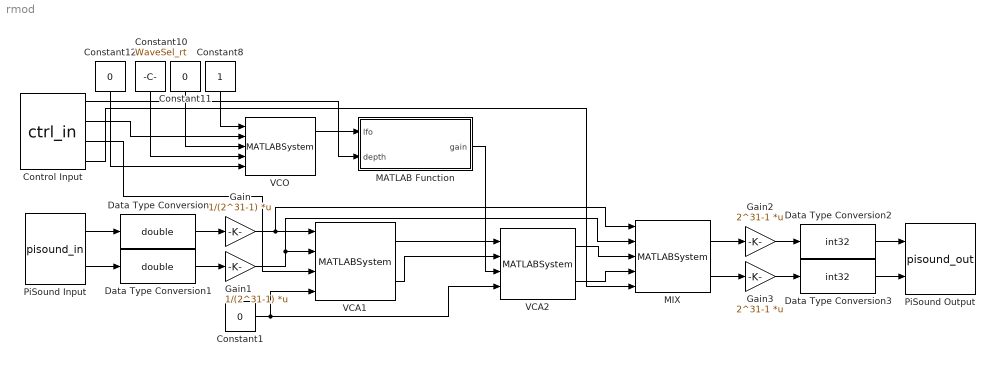
== matlab function rmod/MATLAB Function ==
function gain = ring_gain(lfo, depth)
% ring_gain  Convierte la salida del LFO en ganancia bipolar para VCA
%
% Entradas:
%   lfo   : [N x 1] double  salida del LFO en [-1, 1]
%   depth : scalar double   profundidad de modulación [0, 1]
%
% Salida:
%   gain  : [N x 1] double  ganancia bipolar para VCA modo lineal

    gain = depth * lfo;
end

/*
 * Academic License - for use in teaching, academic research, and meeting
 * course requirements at degree granting institutions only.  Not for
 * government, commercial, or other organizational use.
 *
 * File: rmod.c
 *
 * Code generated for Simulink model 'rmod'.
 *
 * Model version                  : 1.62
 * Simulink Coder version         : 25.2 (R2025b) 28-Jul-2025
 * C/C++ source code generated on : Sat Apr 11 11:25:51 2026
 *
 * Target selection: ert.tlc
 * Embedded hardware selection: Generic->32-bit Embedded Processor
 * Code generation objectives: Unspecified
 * Validation result: Not run
 */

#include "rmod.h"
#include "rtwtypes.h"
#include "rmod_private.h"
#include "rt_nonfinite.h"
#include <math.h>
#include <string.h>

/* Block signals (default storage) */
B_rmod_T rmod_B;

/* Block states (default storage) */
DW_rmod_T rmod_DW;

/* Real-time model */
static RT_MODEL_rmod_T rmod_M_;
RT_MODEL_rmod_T *const rmod_M = &rmod_M_;

/* Forward declaration for local functions */
static real_T rmod_wt_read_lin(const real_T tbl[4096], real_T L, real_T ph);
real_T rt_powd_snf(real_T u0, real_T u1)
{
  real_T y;
  if (rtIsNaN(u0) || rtIsNaN(u1)) {
    y = (rtNaN);
  } else {
    real_T tmp;
    real_T tmp_0;
    tmp = fabs(u0);
    tmp_0 = fabs(u1);
    if (rtIsInf(u1)) {
      if (tmp == 1.0) {
        y = 1.0;
      } else if (tmp > 1.0) {
        if (u1 > 0.0) {
          y = (rtInf);
        } else {
          y = 0.0;
        }
      } else if (u1 > 0.0) {
        y = 0.0;
      } else {
        y = (rtInf);
      }
    } else if (tmp_0 == 0.0) {
      y = 1.0;
    } else if (tmp_0 == 1.0) {
      if (u1 > 0.0) {
        y = u0;
      } else {
        y = 1.0 / u0;
      }
    } else if (u1 == 2.0) {
      y = u0 * u0;
    } else if ((u1 == 0.5) && (u0 >= 0.0)) {
      y = sqrt(u0);
    } else if ((u0 < 0.0) && (u1 > floor(u1))) {
      y = (rtNaN);
    } else {
      y = pow(u0, u1);
    }
  }

  return y;
}

static real_T rmod_wt_read_lin(const real_T tbl[4096], real_T L, real_T ph)
{
  real_T idx;
  real_T k;
  real_T p1;
  real_T p2;
  if (ph >= 1.0) {
    /* Start for MATLABSystem: '<Root>/VCO' */
    ph -= floor(ph);
  }

  idx = ph * L;

  /* Start for MATLABSystem: '<Root>/VCO' */
  k = floor(idx);
  p1 = k + 1.0;

  /* Start for MATLABSystem: '<Root>/VCO' */
  if (k + 1.0 > L) {
    p1 = 1.0;
  }

  p2 = p1 + 1.0;

  /* Start for MATLABSystem: '<Root>/VCO' */
  if (p1 + 1.0 > L) {
    p2 = 1.0;
  }

  p1 = tbl[(int32_T)p1 - 1];

  /* Start for MATLABSystem: '<Root>/VCO' */
  return (tbl[(int32_T)p2 - 1] - p1) * (idx - k) + p1;
}

/* Model step function */
void rmod_step(void)
{
  real_T rtb_Gain[128];
  real_T rtb_Gain1[128];
  real_T rtb_VCA2_o1[128];
  real_T rtb_gain[128];
  real_T L;
  real_T g;
  real_T inc;
  real_T ph;
  real_T q;
  real_T tmp;
  real_T vL;
  int32_T i;
  uint8_T ws;
  boolean_T m;

  /* S-Function (ctrl_in): '<Root>/Control Input' */

  /* Level2 S-Function Block: '<Root>/Control Input' (ctrl_in) */
  {
    SimStruct *rts = rmod_M->childSfunctions[0];
    sfcnOutputs(rts,0);
  }

  /* S-Function (pisound_in): '<Root>/PiSound Input' */

  /* Level2 S-Function Block: '<Root>/PiSound Input' (pisound_in) */
  {
    SimStruct *rts = rmod_M->childSfunctions[1];
    sfcnOutputs(rts,0);
  }

  for (i = 0; i < 128; i++) {
    /* Gain: '<Root>/Gain' incorporates:
     *  DataTypeConversion: '<Root>/Data Type Conversion'
     */
    rtb_Gain[i] = rmod_P.Gain_Gain * (real_T)rmod_B.PiSoundInput_o1[i];

    /* Gain: '<Root>/Gain1' incorporates:
     *  DataTypeConversion: '<Root>/Data Type Conversion1'
     */
    rtb_Gain1[i] = rmod_P.Gain1_Gain * (real_T)rmod_B.PiSoundInput_o2[i];
  }

  /* MATLABSystem: '<Root>/VCA1' incorporates:
   *  Constant: '<Root>/Constant1'
   */
  g = rmod_B.ControlInput_o3;

  /*  g es Nx1 */
  if (rmod_P.Constant1_Value != 0) {
    g = rt_powd_snf(10.0, rmod_B.ControlInput_o3 / 20.0);

    /*  dB -> lineal, elemento a elemento */
  }

  /* MATLABSystem: '<Root>/VCO' incorporates:
   *  Constant: '<Root>/Constant10'
   *  Constant: '<Root>/Constant11'
   *  Constant: '<Root>/Constant12'
   */
  /*  bp es logical */
  /*  elemento a elemento */
  /*  --- I/O */
  /*  --- WaveSel seguro (NO double->uint8) */
  ws = rmod_P.WaveSel_rt;
  if (rmod_P.WaveSel_rt < 1) {
    ws = 1U;
  } else if (rmod_P.WaveSel_rt > 10) {
    ws = 10U;
  }

  L = rmod_DW.obj.TablesSize[ws - 1];
  if (L < 2.0) {
    L = 2.0;
  }

  inc = rmod_B.ControlInput_o2 / 48000.0;
  ph = rmod_DW.obj.Phase;
  if (rtIsNaN(rmod_P.Constant11_Value) || rtIsInf(rmod_P.Constant11_Value)) {
    q = (rtNaN);
  } else {
    q = fabs(rmod_P.Constant11_Value / 6.2831853071795862);
    if (fabs(q - floor(q + 0.5)) > 2.2204460492503131E-16 * q) {
      q = fmod(rmod_P.Constant11_Value, 6.2831853071795862);
    } else {
      q = 0.0;
    }

    if (q == 0.0) {
      q = 0.0;
    } else if (q < 0.0) {
      q += 6.2831853071795862;
    }
  }

  q /= 6.2831853071795862;

  /*  cycles */
  m = (rmod_P.Constant12_Value != 0);
  for (i = 0; i < 128; i++) {
    vL = rmod_wt_read_lin(&rmod_DW.obj.WaveTables[(ws - 1) << 12], L, ph + q);
    if (m) {
      /*  unipolar 0..1 */
      vL = (vL + 1.0) * 0.5;
    } else {
      /*  bipolar */
      /*  v = v */
    }

    ph += inc;
    if (ph >= 1.0) {
      ph--;
    }

    /* MATLAB Function: '<Root>/MATLAB Function' incorporates:
     *  Constant: '<Root>/Constant8'
     */
    rtb_gain[i] = rmod_P.Constant8_Value * vL * rmod_B.ControlInput_o1;
  }

  rmod_DW.obj.Phase = ph;

  /* End of MATLABSystem: '<Root>/VCO' */

  /* MATLABSystem: '<Root>/VCA2' incorporates:
   *  Constant: '<Root>/Constant1'
   *  MATLABSystem: '<Root>/VCA1'
   * */
  /*  g es Nx1 */
  if (rmod_P.Constant1_Value != 0) {
    for (i = 0; i < 128; i++) {
      rtb_gain[i] = rt_powd_snf(10.0, rtb_gain[i] / 20.0);
    }

    /*  dB -> lineal, elemento a elemento */
  }

  /*  bp es logical */
  /*  elemento a elemento */
  for (i = 0; i < 128; i++) {
    L = rtb_gain[i];
    rtb_VCA2_o1[i] = rtb_Gain[i] * g * L;

    /* MATLABSystem: '<Root>/VCA2' incorporates:
     *  MATLABSystem: '<Root>/VCA1'
     * */
    rtb_gain[i] = rtb_Gain1[i] * g * L;
  }

  /* End of MATLABSystem: '<Root>/VCA2' */

  /* MATLABSystem: '<Root>/MIX' */
  if (rmod_DW.obj_a.SmoothTime != rmod_P.MIX_SmoothTime) {
    rmod_DW.obj_a.SmoothTime = rmod_P.MIX_SmoothTime;
  }

  if (rmod_DW.obj_a.IndepInDB != rmod_P.MIX_IndepInDB) {
    rmod_DW.obj_a.IndepInDB = rmod_P.MIX_IndepInDB;
  }

  /*  inL,inR,wetL,wetR,p1 (+p2 si Mode=2) */
  /*  Mode 3: crossfade por muestra (p1 puede ser [N x 1]) */
  /*  dummy */
  g = fmin(fmax(rmod_B.ControlInput_o4, 0.0), 1.0);
  L = rmod_DW.obj_a.a;
  inc = rmod_DW.obj_a.gd1;
  ph = rmod_DW.obj_a.gd2;
  q = rmod_DW.obj_a.gw1;
  vL = rmod_DW.obj_a.gw2;

  /*  más robusto que obj.N */
  for (i = 0; i < 128; i++) {
    inc += ((1.0 - g) - inc) * L;
    q += (g - q) * L;
    ph += ((1.0 - g) - ph) * L;
    vL += (g - vL) * L;

    /* DataTypeConversion: '<Root>/Data Type Conversion2' incorporates:
     *  Gain: '<Root>/Gain2'
     *  MATLABSystem: '<Root>/VCA2'
     */
    tmp = floor((inc * rtb_Gain[i] + q * rtb_VCA2_o1[i]) * rmod_P.Gain2_Gain);
    if (rtIsNaN(tmp) || rtIsInf(tmp)) {
      tmp = 0.0;
    } else {
      tmp = fmod(tmp, 4.294967296E+9);
    }

    /* DataTypeConversion: '<Root>/Data Type Conversion2' */
    rmod_B.DataTypeConversion2[i] = tmp < 0.0 ? -(int32_T)(uint32_T)-tmp :
      (int32_T)(uint32_T)tmp;

    /* DataTypeConversion: '<Root>/Data Type Conversion3' incorporates:
     *  Gain: '<Root>/Gain3'
     *  MATLABSystem: '<Root>/VCA2'
     */
    tmp = floor((ph * rtb_Gain1[i] + vL * rtb_gain[i]) * rmod_P.Gain3_Gain);
    if (rtIsNaN(tmp) || rtIsInf(tmp)) {
      tmp = 0.0;
    } else {
      tmp = fmod(tmp, 4.294967296E+9);
    }

    /* DataTypeConversion: '<Root>/Data Type Conversion3' */
    rmod_B.DataTypeConversion3[i] = tmp < 0.0 ? -(int32_T)(uint32_T)-tmp :
      (int32_T)(uint32_T)tmp;
  }

  rmod_DW.obj_a.gd1 = inc;
  rmod_DW.obj_a.gd2 = ph;
  rmod_DW.obj_a.gw1 = q;
  rmod_DW.obj_a.gw2 = vL;

  /* End of MATLABSystem: '<Root>/MIX' */

  /* S-Function (pisound_out): '<Root>/PiSound Output' */

  /* Level2 S-Function Block: '<Root>/PiSound Output' (pisound_out) */
  {
    SimStruct *rts = rmod_M->childSfunctions[2];
    sfcnOutputs(rts,0);
  }

  /* Update absolute time for base rate */
  /* The "clockTick0" counts the number of times the code of this task has
   * been executed. The absolute time is the multiplication of "clockTick0"
   * and "Timing.stepSize0". Size of "clockTick0" ensures timer will not
   * overflow during the application lifespan selected.
   */
  rmod_M->Timing.t[0] =
    ((time_T)(++rmod_M->Timing.clockTick0)) * rmod_M->Timing.stepSize0;
}
